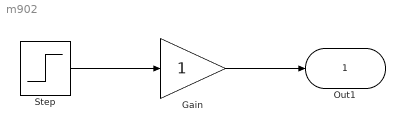
/*
 * m902.c
 * 
 * Real-Time Workshop code generation for Simulink model "m902.mdl".
 *
 * Model Version              : 1.1
 * Real-Time Workshop version : 6.1  (R14SP1)  05-Sep-2004
 * C source code generated on : Sat Apr 02 08:46:32 2005
 */

#include "m902.h"
#include "m902_private.h"

/* External output (root outports fed by signals with auto storage) */
ExternalOutputs_m902 m902_Y;

/* Real-time model */
rtModel_m902 m902_M_;
rtModel_m902 *m902_M = &m902_M_;

/* Model output function */
static void m902_output(int_T tid)
{

  /* local block i/o variables */

  real_T rtb_Step;

  /* Step: '<Root>/Step' */
  {
    real_T currentTime = m902_M->Timing.t[0];
    if (currentTime < m902_P.Step_Time) {
      rtb_Step = m902_P.Step_Y0;
    } else {
      rtb_Step = m902_P.Step_YFinal;
    }
  }

  /* Outport: '<Root>/Out1' incorporates:
   *  Gain: '<Root>/Gain' */
  m902_Y.Out1 = rtb_Step * m902_P.Gain_Gain;
}

/* Model update function */
static void m902_update(int_T tid)
{

  /* Update absolute time for base rate */

  if(!(++m902_M->Timing.clockTick0)) ++m902_M->Timing.clockTickH0;
  m902_M->Timing.t[0] = m902_M->Timing.clockTick0 * m902_M->Timing.stepSize0 +
    m902_M->Timing.clockTickH0 * m902_M->Timing.stepSize0 * 4294967296.0;

  {
    /* Update absolute timer for sample time: [0.2s, 0.0s] */

    if(!(++m902_M->Timing.clockTick1)) ++m902_M->Timing.clockTickH1;
    m902_M->Timing.t[1] = m902_M->Timing.clockTick1 * m902_M->Timing.stepSize1 +
      m902_M->Timing.clockTickH1 * m902_M->Timing.stepSize1 * 4294967296.0;
  }
}
